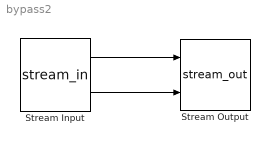
/*
 * Academic License - for use in teaching, academic research, and meeting
 * course requirements at degree granting institutions only.  Not for
 * government, commercial, or other organizational use.
 *
 * File: bypass2.c
 *
 * Code generated for Simulink model 'bypass2'.
 *
 * Model version                  : 1.6
 * Simulink Coder version         : 25.2 (R2025b) 28-Jul-2025
 * C/C++ source code generated on : Sun Apr  5 11:08:17 2026
 *
 * Target selection: ert.tlc
 * Embedded hardware selection: Intel->x86-64 (Windows64)
 * Code generation objectives: Unspecified
 * Validation result: Not run
 */

#include "bypass2.h"
#include "bypass2_private.h"

/* Block signals (default storage) */
B_bypass2_T bypass2_B;

/* Real-time model */
static RT_MODEL_bypass2_T bypass2_M_;
RT_MODEL_bypass2_T *const bypass2_M = &bypass2_M_;

/* Model step function */
void bypass2_step(void)
{
  /* S-Function (stream_in): '<Root>/Stream Input' */

  /* Level2 S-Function Block: '<Root>/Stream Input' (stream_in) */
  {
    SimStruct *rts = bypass2_M->childSfunctions[0];
    sfcnOutputs(rts,0);
  }

  /* S-Function (stream_out): '<Root>/Stream Output' */

  /* Level2 S-Function Block: '<Root>/Stream Output' (stream_out) */
  {
    SimStruct *rts = bypass2_M->childSfunctions[1];
    sfcnOutputs(rts,0);
  }

  /* Update absolute time for base rate */
  /* The "clockTick0" counts the number of times the code of this task has
   * been executed. The absolute time is the multiplication of "clockTick0"
   * and "Timing.stepSize0". Size of "clockTick0" ensures timer will not
   * overflow during the application lifespan selected.
   */
  bypass2_M->Timing.t[0] =
    ((time_T)(++bypass2_M->Timing.clockTick0)) * bypass2_M->Timing.stepSize0;
}
